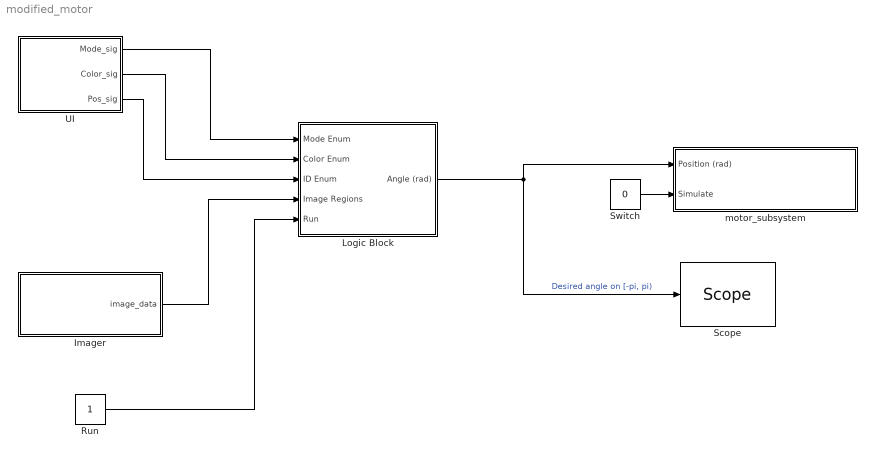
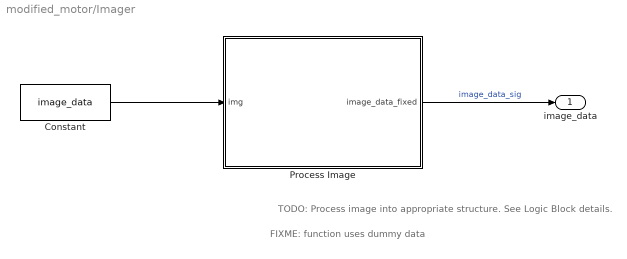
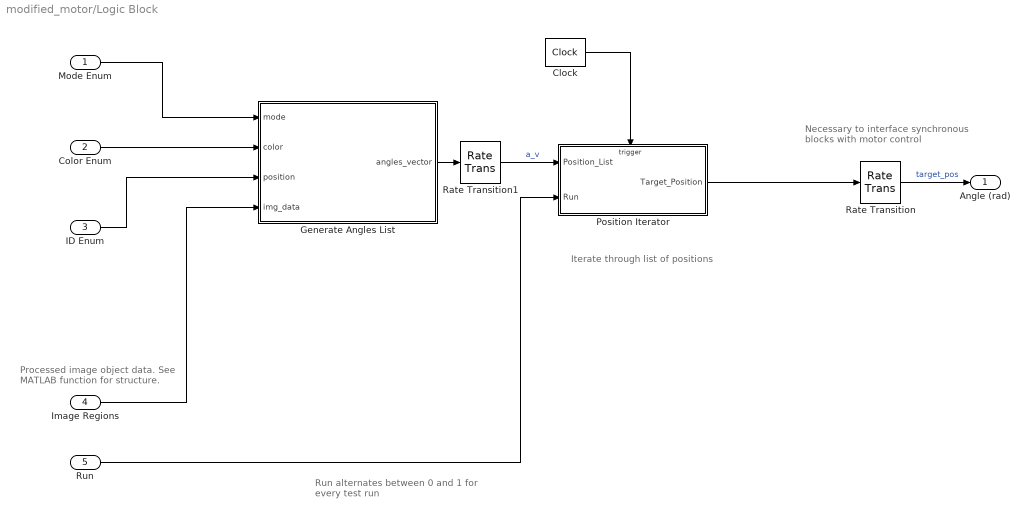
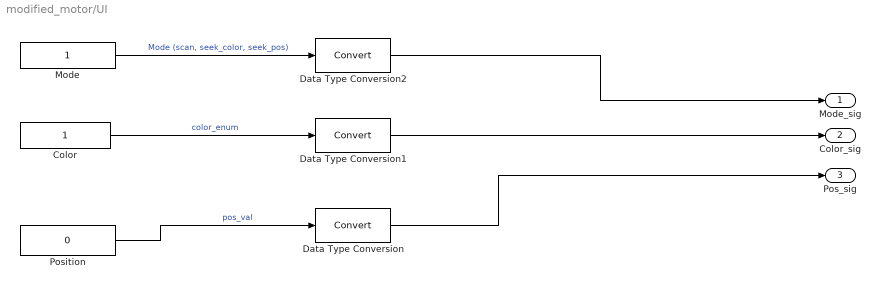
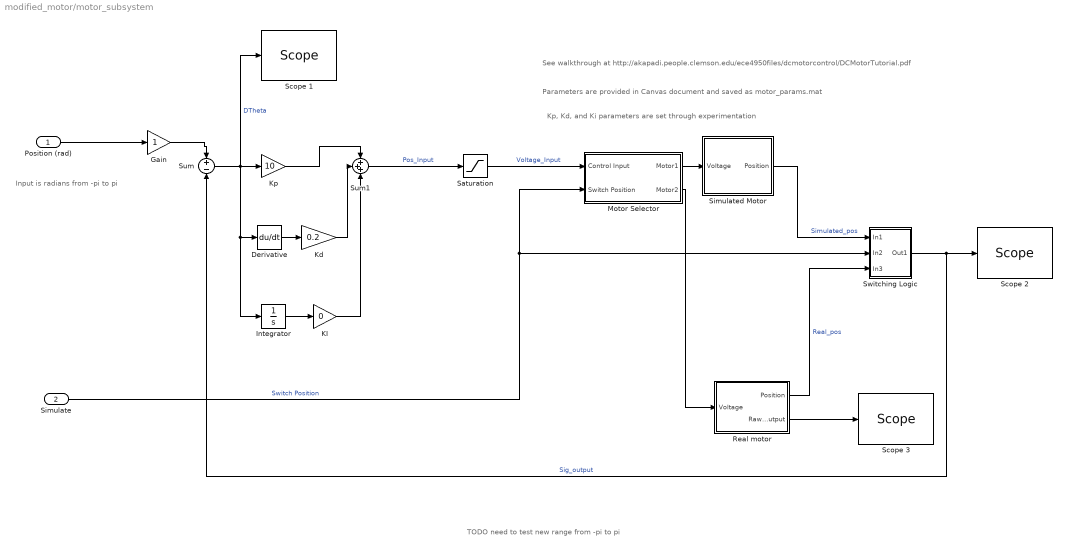
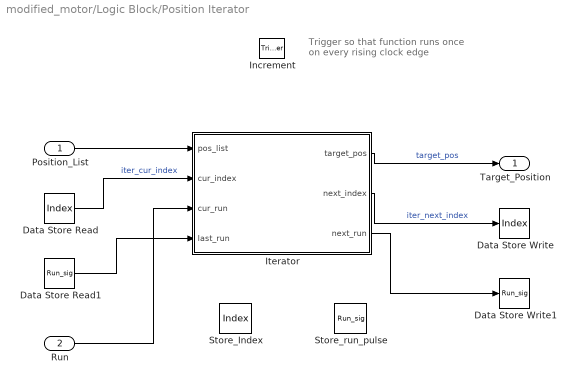
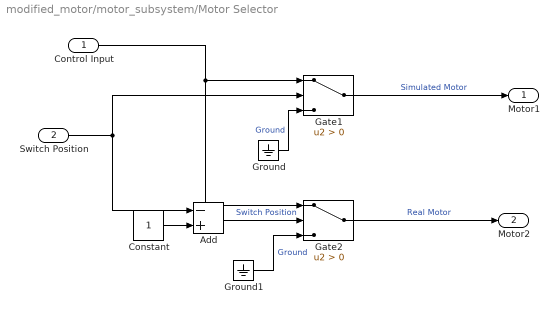
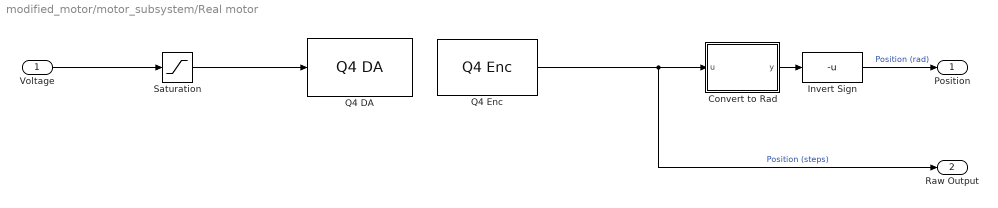
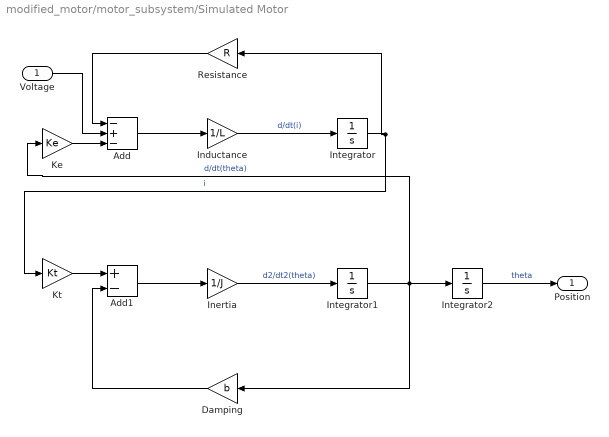
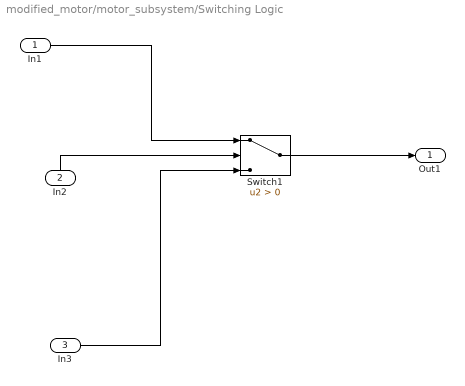
== matlab function modified_motor/Logic Block/Generate Angles List ==
% PURPOSE - Parser to set 
% INPUTS
%   - Mode: What should the system do in response to the user selection
%       - scan: Visit every well with a sticker
%       - seek color: Visit every well with a sticker of the given color
%       - seek position: Visit only the well with the given sticker ID
%   - Color Enum: What color the system should visit
%   - Position: Angle in radians to visit
%   - Image Data: 2D processed data from webcam
%       - Col 1: Color
%       - Col 2: X Position
%       - Col 3: Y Position
% OUTPUTS
%   - positions_to_visit: Vector of fixed destination positions on [-pi, pi) 
%       to which the motor arm should point in sequence.
% NOTES
%   - If mode = 1 then the function ignores requested position and color.
%   - If mode = 2 then the function ignores requested position.
%   - If mode = 3 then the function ignores requested color.


function angles_vector = make_angle_vector(mode, color, position, img_data)

% MATLAB expects a fixed-size output matrix so allow up to 100 angles
% to be propagated
MAX_ANGLES_TO_VISIT = 100;

MODE_SCAN = 1;
MODE_SEEK_COLOR = 2;
MODE_SEEK_POSITION = 3;

COLOR_COL = 1;
X_COL = 2;
Y_COL = 3;

angles_vector = zeros(MAX_ANGLES_TO_VISIT, 1);

if mode == MODE_SCAN
    rect_coords = img_data(img_data(:,1) ~= 0, X_COL:Y_COL);
    angles_to_visit = rect_to_polar_v2(rect_coords);

elseif mode == MODE_SEEK_COLOR
    rect_coords = img_data(img_data(:, COLOR_COL) == color, X_COL:Y_COL);
    angles_to_visit = rect_to_polar_v2(rect_coords);

elseif mode == MODE_SEEK_POSITION
    angles_to_visit = position;

else
    angles_to_visit = [pi; -pi; pi/2; -pi/2];
end

% Package variable-length vector into fixed-length vector
angles_vector(1:size(angles_to_visit,1), :) = angles_to_visit;

== matlab function modified_motor/motor_subsystem/Real motor/Convert to Rad ==
function y = fcn(u)

% Observed experimentally
STEPS_IN_ONE_ROTATION = 400;

rads_from_zero_to_twopi = u * 2 * pi / STEPS_IN_ONE_ROTATION;

y = rads_from_zero_to_twopi;

== matlab function modified_motor/Imager/Process Image ==
function image_data_fixed = process_image(img)

% Can only send fixed-length matrices so specify max 100 regions
REGIONS_SIGNAL_CAPACITY = 100;

% FIXME do processing
image_data_fixed = zeros(REGIONS_SIGNAL_CAPACITY, 3);

% ex. pass back [shape; color; x_pos; y_pos]
image_data_fixed(1:size(img,1),:) = img;

== matlab function modified_motor/Logic Block/Position Iterator/Iterator ==
% PURPOSE - Iterate over list of positions to visit
% INPUTS
%   - Position List: Vector of target positions for the motor to turn to
%   - Current Index: Loopback to store variable state
%   - Clock: Trigger to move to the next position
%   - Reset: Trigger to reset to first position in list (0 == HIGH)
% OUTPUTS
%   - Target Position: Motor position on range [-pi, pi) 
%   - Next Index: Loopback to store variable state
% BEHAVIOR
%   - If Reset is high then reset index to 0 and output first position
%   - Else if Clock is low then output the position at the current index
%   - Else if the index is at the end of the list then output 0
%   - Else increment the index and output the next position

function [target_pos, next_index, next_run] = iterate(pos_list, cur_index, cur_run, last_run)

% PRECONDITION: pos_list is a column vector
assert(size(pos_list, 2) == 1)

ZERO_POSITION = 0;
pos_list_len = size(pos_list, 1);

% This is a very hack-y edge trigger
if cur_run ~= last_run
   next_index = 1;
   target_pos = pos_list(1);
else
   % If we can increment then do that
    if -1 < cur_index && cur_index < pos_list_len
        next_index = cur_index + 1;
        target_pos = pos_list(cur_index + 1);
    % Otherwise maintain current state
    else
        next_index = cur_index;
        target_pos = ZERO_POSITION;
    end
end

next_run = cur_run;

/*
 * modified_motor.c
 *
 * Academic License - for use in teaching, academic research, and meeting
 * course requirements at degree granting institutions only.  Not for
 * government, commercial, or other organizational use.
 *
 * Code generation for model "modified_motor".
 *
 * Model version              : 1.228
 * Simulink Coder version : 8.12 (R2017a) 16-Feb-2017
 * C source code generated on : Thu Mar 12 20:54:42 2020
 *
 * Target selection: slrt.tlc
 * Note: GRT includes extra infrastructure and instrumentation for prototyping
 * Embedded hardware selection: Generic->32-bit x86 compatible
 * Code generation objectives: Unspecified
 * Validation result: Not run
 */

#include "rt_logging_mmi.h"
#include "modified_motor_capi.h"
#include "modified_motor.h"
#include "modified_motor_private.h"

/* Block signals (auto storage) */
B_modified_motor_T modified_motor_B;

/* Continuous states */
X_modified_motor_T modified_motor_X;

/* Block states (auto storage) */
DW_modified_motor_T modified_motor_DW;

/* Previous zero-crossings (trigger) states */
PrevZCX_modified_motor_T modified_motor_PrevZCX;

/* Real-time model */
RT_MODEL_modified_motor_T modified_motor_M_;
RT_MODEL_modified_motor_T *const modified_motor_M = &modified_motor_M_;

/* Forward declaration for local functions */
static void modified_motor_merge(int32_T idx_data[], real_T x_data[], int32_T
  offset, int32_T np, int32_T nq, int32_T iwork_data[], real_T xwork_data[]);
static void modified_motor_merge_block(int32_T idx_data[], real_T x_data[],
  int32_T n, int32_T iwork_data[], real_T xwork_data[]);
static void modified_motor_sortIdx(real_T x_data[], int32_T *x_size, int32_T
  idx_data[], int32_T *idx_size);
static void modified_motor_sort(real_T x_data[], int32_T *x_size);
static void modified_motor_rect_to_polar_v2(const real_T center_coords_data[],
  const int32_T center_coords_size[2], real_T Angles_sorted_data[], int32_T
  *Angles_sorted_size);
static void rate_monotonic_scheduler(void);
time_T rt_SimUpdateDiscreteEvents(
  int_T rtmNumSampTimes, void *rtmTimingData, int_T *rtmSampleHitPtr, int_T
  *rtmPerTaskSampleHits )
{
  rtmSampleHitPtr[1] = rtmStepTask(modified_motor_M, 1);
  rtmSampleHitPtr[2] = rtmStepTask(modified_motor_M, 2);
  UNUSED_PARAMETER(rtmNumSampTimes);
  UNUSED_PARAMETER(rtmTimingData);
  UNUSED_PARAMETER(rtmPerTaskSampleHits);
  return(-1);
}

/*
 *   This function updates active task flag for each subrate
 * and rate transition flags for tasks that exchange data.
 * The function assumes rate-monotonic multitasking scheduler.
 * The function must be called at model base rate so that
 * the generated code self-manages all its subrates and rate
 * transition flags.
 */
static void rate_monotonic_scheduler(void)
{
  /* To ensure a deterministic data transfer between two rates,
   * data is transferred at the priority of a fast task and the frequency
   * of the slow task.  The following flags indicate when the data transfer
   * happens.  That is, a rate interaction flag is set true when both rates
   * will run, and false otherwise.
   */

  /* tid 1 shares data with slower tid rate: 2 */
  if (modified_motor_M->Timing.TaskCounters.TID[1] == 0) {
    modified_motor_M->Timing.RateInteraction.TID1_2 =
      (modified_motor_M->Timing.TaskCounters.TID[2] == 0);

    /* update PerTaskSampleHits matrix for non-inline sfcn */
    modified_motor_M->Timing.perTaskSampleHits[5] =
      modified_motor_M->Timing.RateInteraction.TID1_2;
  }

  /* Compute which subrates run during the next base time step.  Subrates
   * are an integer multiple of the base rate counter.  Therefore, the subtask
   * counter is reset when it reaches its limit (zero means run).
   */
  (modified_motor_M->Timing.TaskCounters.TID[2])++;
  if ((modified_motor_M->Timing.TaskCounters.TID[2]) > 999) {/* Sample time: [1.0s, 0.0s] */
    modified_motor_M->Timing.TaskCounters.TID[2] = 0;
  }
}

/*
 * This function updates continuous states using the ODE3 fixed-step
 * solver algorithm
 */
static void rt_ertODEUpdateContinuousStates(RTWSolverInfo *si )
{
  /* Solver Matrices */
  static const real_T rt_ODE3_A[3] = {
    1.0/2.0, 3.0/4.0, 1.0
  };

  static const real_T rt_ODE3_B[3][3] = {
    { 1.0/2.0, 0.0, 0.0 },

    { 0.0, 3.0/4.0, 0.0 },

    { 2.0/9.0, 1.0/3.0, 4.0/9.0 }
  };

  time_T t = rtsiGetT(si);
  time_T tnew = rtsiGetSolverStopTime(si);
  time_T h = rtsiGetStepSize(si);
  real_T *x = rtsiGetContStates(si);
  ODE3_IntgData *id = (ODE3_IntgData *)rtsiGetSolverData(si);
  real_T *y = id->y;
  real_T *f0 = id->f[0];
  real_T *f1 = id->f[1];
  real_T *f2 = id->f[2];
  real_T hB[3];
  int_T i;
  int_T nXc = 4;
  rtsiSetSimTimeStep(si,MINOR_TIME_STEP);

  /* Save the state values at time t in y, we'll use x as ynew. */
  (void) memcpy(y, x,
                (uint_T)nXc*sizeof(real_T));

  /* Assumes that rtsiSetT and ModelOutputs are up-to-date */
  /* f0 = f(t,y) */
  rtsiSetdX(si, f0);
  modified_motor_derivatives();

  /* f(:,2) = feval(odefile, t + hA(1), y + f*hB(:,1), args(:)(*)); */
  hB[0] = h * rt_ODE3_B[0][0];
  for (i = 0; i < nXc; i++) {
    x[i] = y[i] + (f0[i]*hB[0]);
  }

  rtsiSetT(si, t + h*rt_ODE3_A[0]);
  rtsiSetdX(si, f1);
  modified_motor_output0();
  modified_motor_derivatives();

  /* f(:,3) = feval(odefile, t + hA(2), y + f*hB(:,2), args(:)(*)); */
  for (i = 0; i <= 1; i++) {
    hB[i] = h * rt_ODE3_B[1][i];
  }

  for (i = 0; i < nXc; i++) {
    x[i] = y[i] + (f0[i]*hB[0] + f1[i]*hB[1]);
  }

  rtsiSetT(si, t + h*rt_ODE3_A[1]);
  rtsiSetdX(si, f2);
  modified_motor_output0();
  modified_motor_derivatives();

  /* tnew = t + hA(3);
     ynew = y + f*hB(:,3); */
  for (i = 0; i <= 2; i++) {
    hB[i] = h * rt_ODE3_B[2][i];
  }

  for (i = 0; i < nXc; i++) {
    x[i] = y[i] + (f0[i]*hB[0] + f1[i]*hB[1] + f2[i]*hB[2]);
  }

  rtsiSetT(si, tnew);
  rtsiSetSimTimeStep(si,MAJOR_TIME_STEP);
}

/* Function for MATLAB Function: '<S2>/Generate Angles List' */
static void modified_motor_merge(int32_T idx_data[], real_T x_data[], int32_T
  offset, int32_T np, int32_T nq, int32_T iwork_data[], real_T xwork_data[])
{
  int32_T n;
  int32_T q;
  int32_T qend;
  int32_T iout;
  int32_T exitg1;
  if (nq != 0) {
    n = np + nq;
    for (q = 0; q + 1 <= n; q++) {
      iwork_data[q] = idx_data[offset + q];
      xwork_data[q] = x_data[offset + q];
    }

    n = 0;
    q = np;
    qend = np + nq;
    iout = offset - 1;
    do {
      exitg1 = 0;
      iout++;
      if (xwork_data[n] <= xwork_data[q]) {
        idx_data[iout] = iwork_data[n];
        x_data[iout] = xwork_data[n];
        if (n + 1 < np) {
          n++;
        } else {
          exitg1 = 1;
        }
      } else {
        idx_data[iout] = iwork_data[q];
        x_data[iout] = xwork_data[q];
        if (q + 1 < qend) {
          q++;
        } else {
          q = (iout - n) + 1;
          while (n + 1 <= np) {
            idx_data[q + n] = iwork_data[n];
            x_data[q + n] = xwork_data[n];
            n++;
          }

          exitg1 = 1;
        }
      }
    } while (exitg1 == 0);
  }
}

/* Function for MATLAB Function: '<S2>/Generate Angles List' */
static void modified_motor_merge_block(int32_T idx_data[], real_T x_data[],
  int32_T n, int32_T iwork_data[], real_T xwork_data[])
{
  int32_T bLen;
  int32_T tailOffset;
  int32_T nTail;
  int32_T nPairs;
  nPairs = n >> 2;
  bLen = 4;
  while (nPairs > 1) {
    if ((nPairs & 1) != 0) {
      nPairs--;
      tailOffset = bLen * nPairs;
      nTail = n - tailOffset;
      if (nTail > bLen) {
        modified_motor_merge(idx_data, x_data, tailOffset, bLen, nTail - bLen,
                             iwork_data, xwork_data);
      }
    }

    tailOffset = bLen << 1;
    nPairs >>= 1;
    for (nTail = 1; nTail <= nPairs; nTail++) {
      modified_motor_merge(idx_data, x_data, (nTail - 1) * tailOffset, bLen,
                           bLen, iwork_data, xwork_data);
    }

    bLen = tailOffset;
  }

  if (n > bLen) {
    modified_motor_merge(idx_data, x_data, 0, bLen, n - bLen, iwork_data,
                         xwork_data);
  }
}

/* Function for MATLAB Function: '<S2>/Generate Angles List' */
static void modified_motor_sortIdx(real_T x_data[], int32_T *x_size, int32_T
  idx_data[], int32_T *idx_size)
{
  real_T b_x_data[100];
  int32_T nNaNs;
  int32_T iwork_data[100];
  real_T xwork_data[100];
  int32_T n;
  real_T x4[4];
  int8_T idx4[4];
  int32_T ib;
  int32_T wOffset;
  int32_T itmp;
  int8_T perm[4];
  int32_T i1;
  int32_T i3;
  int32_T i4;
  int32_T b_x_size;
  int32_T iwork_size;
  int32_T xwork_size;
  int8_T b_idx_0;
  b_idx_0 = (int8_T)*x_size;
  b_x_size = *x_size;
  n = *x_size;
  for (nNaNs = 0; nNaNs < n; nNaNs++) {
    b_x_data[nNaNs] = x_data[nNaNs];
  }

  *idx_size = b_idx_0;
  n = b_idx_0;
  for (nNaNs = 0; nNaNs < n; nNaNs++) {
    idx_data[nNaNs] = 0;
  }

  n = *x_size;
  x4[0] = 0.0;
  idx4[0] = 0;
  x4[1] = 0.0;
  idx4[1] = 0;
  x4[2] = 0.0;
  idx4[2] = 0;
  x4[3] = 0.0;
  idx4[3] = 0;
  iwork_size = b_idx_0;
  ib = iwork_size;
  for (nNaNs = 0; nNaNs < ib; nNaNs++) {
    iwork_data[nNaNs] = 0;
  }

  b_idx_0 = (int8_T)*x_size;
  xwork_size = b_idx_0;
  ib = xwork_size;
  for (nNaNs = 0; nNaNs < ib; nNaNs++) {
    xwork_data[nNaNs] = 0.0;
  }

  nNaNs = 1;
  ib = 0;
  for (wOffset = 0; wOffset + 1 <= n; wOffset++) {
    if (rtIsNaN(b_x_data[wOffset])) {
      idx_data[n - nNaNs] = wOffset + 1;
      xwork_data[n - nNaNs] = b_x_data[wOffset];
      nNaNs++;
    } else {
      ib++;
      idx4[ib - 1] = (int8_T)(wOffset + 1);
      x4[ib - 1] = b_x_data[wOffset];
      if (ib == 4) {
        ib = wOffset - nNaNs;
        if (x4[0] <= x4[1]) {
          i1 = 1;
          itmp = 2;
        } else {
          i1 = 2;
          itmp = 1;
        }

        if (x4[2] <= x4[3]) {
          i3 = 3;
          i4 = 4;
        } else {
          i3 = 4;
          i4 = 3;
        }

        if (x4[i1 - 1] <= x4[i3 - 1]) {
          if (x4[itmp - 1] <= x4[i3 - 1]) {
            perm[0] = (int8_T)i1;
            perm[1] = (int8_T)itmp;
            perm[2] = (int8_T)i3;
            perm[3] = (int8_T)i4;
          } else if (x4[itmp - 1] <= x4[i4 - 1]) {
            perm[0] = (int8_T)i1;
            perm[1] = (int8_T)i3;
            perm[2] = (int8_T)itmp;
            perm[3] = (int8_T)i4;
          } else {
            perm[0] = (int8_T)i1;
            perm[1] = (int8_T)i3;
            perm[2] = (int8_T)i4;
            perm[3] = (int8_T)itmp;
          }
        } else if (x4[i1 - 1] <= x4[i4 - 1]) {
          if (x4[itmp - 1] <= x4[i4 - 1]) {
            perm[0] = (int8_T)i3;
            perm[1] = (int8_T)i1;
            perm[2] = (int8_T)itmp;
            perm[3] = (int8_T)i4;
          } else {
            perm[0] = (int8_T)i3;
            perm[1] = (int8_T)i1;
            perm[2] = (int8_T)i4;
            perm[3] = (int8_T)itmp;
          }
        } else {
          perm[0] = (int8_T)i3;
          perm[1] = (int8_T)i4;
          perm[2] = (int8_T)i1;
          perm[3] = (int8_T)itmp;
        }

        idx_data[ib - 2] = idx4[perm[0] - 1];
        idx_data[ib - 1] = idx4[perm[1] - 1];
        idx_data[ib] = idx4[perm[2] - 1];
        idx_data[ib + 1] = idx4[perm[3] - 1];
        b_x_data[ib - 2] = x4[perm[0] - 1];
        b_x_data[ib - 1] = x4[perm[1] - 1];
        b_x_data[ib] = x4[perm[2] - 1];
        b_x_data[ib + 1] = x4[perm[3] - 1];
        ib = 0;
      }
    }
  }

  wOffset = *x_size - nNaNs;
  if (ib > 0) {
    perm[1] = 0;
    perm[2] = 0;
    perm[3] = 0;
    if (ib == 1) {
      perm[0] = 1;
    } else if (ib == 2) {
      if (x4[0] <= x4[1]) {
        perm[0] = 1;
        perm[1] = 2;
      } else {
        perm[0] = 2;
        perm[1] = 1;
      }
    } else if (x4[0] <= x4[1]) {
      if (x4[1] <= x4[2]) {
        perm[0] = 1;
        perm[1] = 2;
        perm[2] = 3;
      } else if (x4[0] <= x4[2]) {
        perm[0] = 1;
        perm[1] = 3;
        perm[2] = 2;
      } else {
        perm[0] = 3;
        perm[1] = 1;
        perm[2] = 2;
      }
    } else if (x4[0] <= x4[2]) {
      perm[0] = 2;
      perm[1] = 1;
      perm[2] = 3;
    } else if (x4[1] <= x4[2]) {
      perm[0] = 2;
      perm[1] = 3;
      perm[2] = 1;
    } else {
      perm[0] = 3;
      perm[1] = 2;
      perm[2] = 1;
    }

    for (i1 = 1; i1 <= ib; i1++) {
      idx_data[(wOffset - ib) + i1] = idx4[perm[i1 - 1] - 1];
      b_x_data[(wOffset - ib) + i1] = x4[perm[i1 - 1] - 1];
    }
  }

  ib = ((nNaNs - 1) >> 1) + 1;
  for (i1 = 1; i1 < ib; i1++) {
    itmp = idx_data[wOffset + i1];
    idx_data[wOffset + i1] = idx_data[n - i1];
    idx_data[n - i1] = itmp;
    b_x_data[wOffset + i1] = xwork_data[n - i1];
    b_x_data[n - i1] = xwork_data[wOffset + i1];
  }

  if (((nNaNs - 1) & 1) != 0) {
    b_x_data[wOffset + ib] = xwork_data[wOffset + ib];
  }

  n = (*x_size - nNaNs) + 1;
  if (n > 1) {
    modified_motor_merge_block(idx_data, b_x_data, n, iwork_data, xwork_data);
  }

  *x_size = b_x_size;
  n = b_x_size;
  for (nNaNs = 0; nNaNs < n; nNaNs++) {
    x_data[nNaNs] = b_x_data[nNaNs];
  }
}

/* Function for MATLAB Function: '<S2>/Generate Angles List' */
static void modified_motor_sort(real_T x_data[], int32_T *x_size)
{
  real_T vwork_data[100];
  int32_T vstride;
  int32_T dim;
  int32_T b;
  int32_T c_k;
  int32_T vwork_size;
  emxArray_int32_T_100_modified_T vwork_data_0;
  dim = 2;
  if (*x_size != 1) {
    dim = 1;
  }

  if (dim <= 1) {
    b = *x_size;
  } else {
    b = 1;
  }

  vwork_size = (int8_T)b;
  vstride = 1;
  c_k = 1;
  while (c_k <= dim - 1) {
    vstride *= *x_size;
    c_k = 2;
  }

  for (dim = 0; dim + 1 <= vstride; dim++) {
    for (c_k = 0; c_k + 1 <= b; c_k++) {
      vwork_data[c_k] = x_data[c_k * vstride + dim];
    }

    modified_motor_sortIdx(vwork_data, &vwork_size, vwork_data_0.data,
      &vwork_data_0.size);
    for (c_k = 0; c_k + 1 <= b; c_k++) {
      x_data[dim + c_k * vstride] = vwork_data[c_k];
    }
  }
}

/* Function for MATLAB Function: '<S2>/Generate Angles List' */
static void modified_motor_rect_to_polar_v2(const real_T center_coords_data[],
  const int32_T center_coords_size[2], real_T Angles_sorted_data[], int32_T
  *Angles_sorted_size)
{
  int32_T i;
  int32_T u0;

  /*  PURPOSE - Convert rectangular object coordinates to angle for */
  /*            motor position */
  /*  INPUTS */
  /*    - X, Y coordinates == center coords of each object */
  /*  OUTPUTS */
  /*    - Vector of angles (radians) ordered ascending */
  /*  NOTES */
  /*    - Theta == 0 is at the east of the map */
  /*    - Positive angles are in south plane */
  /*    - Negative angles are in north plane */
  /*    - Camera origin (0,0) is at NW corner */
  /*    - Game board origin is at image center */
  /*  TODO: confirm actual frame dimensions */
  /*  Get the game board center (Approx. Motor Location)  */
  /*  so we can calculate relative angles */
  if (center_coords_size[0] == 0) {
    u0 = 0;
  } else {
    u0 = center_coords_size[0];
    if (!(u0 > 2)) {
      u0 = 2;
    }
  }

  *Angles_sorted_size = u0;
  for (i = 0; i < u0; i++) {
    Angles_sorted_data[i] = atan((center_coords_data[i + center_coords_size[0]]
      - 240.0) / (center_coords_data[i] - 320.0));

    /*  Quandrant dependent angle math */
    /*  Q4 */
    if ((center_coords_data[i] - 320.0 > 0.0) && (center_coords_data[i +
         center_coords_size[0]] - 240.0 < 0.0)) {
      /*  Q3 */
    } else if ((center_coords_data[i] - 320.0 < 0.0) && (center_coords_data[i +
                center_coords_size[0]] - 240.0 < 0.0)) {
      Angles_sorted_data[i] -= 3.1415926535897931;

      /*  Q2 */
    } else if ((center_coords_data[i] - 320.0 < 0.0) && (center_coords_data[i +
                center_coords_size[0]] - 240.0 > 0.0)) {
      Angles_sorted_data[i] += 3.1415926535897931;
    } else if ((center_coords_data[i] - 320.0 > 0.0) && (center_coords_data[i +
                center_coords_size[0]] - 240.0 > 0.0)) {
      /*  may need to fix this, this is 4th quadrant */
      /*  Special case: angle is at -pi */
    } else if ((center_coords_data[i + center_coords_size[0]] - 240.0 == 0.0) &&
               (center_coords_data[i] - 320.0 < 0.0)) {
      Angles_sorted_data[i] = -3.1415926535897931;
    } else {
      if ((center_coords_data[i] - 320.0 == 0.0) && (center_coords_data[i +
           center_coords_size[0]] - 240.0 == 0.0)) {
        Angles_sorted_data[i] = 0.0;
      }
    }

    Angles_sorted_data[i] = -Angles_sorted_data[i];
  }

  modified_motor_sort(Angles_sorted_data, Angles_sorted_size);
}

/* Model output function for TID0 */
void modified_motor_output0(void)      /* Sample time: [0.0s, 0.0s] */
{
  real_T *lastU;
  real_T lastTime;
  real_T angles_to_visit_data[100];
  boolean_T c[100];
  int8_T d_data[100];
  int32_T b_trueCount;
  real_T tmp_data[200];
  int32_T c_i;
  int32_T angles_to_visit_size;
  int32_T tmp_size[2];
  boolean_T c_0;
  int32_T d_size_idx_0;
  real_T u1;
  real_T u2;
  if (rtmIsMajorTimeStep(modified_motor_M)) {
    /* set solver stop time */
    if (!(modified_motor_M->Timing.clockTick0+1)) {
      rtsiSetSolverStopTime(&modified_motor_M->solverInfo,
                            ((modified_motor_M->Timing.clockTickH0 + 1) *
        modified_motor_M->Timing.stepSize0 * 4294967296.0));
    } else {
      rtsiSetSolverStopTime(&modified_motor_M->solverInfo,
                            ((modified_motor_M->Timing.clockTick0 + 1) *
        modified_motor_M->Timing.stepSize0 +
        modified_motor_M->Timing.clockTickH0 *
        modified_motor_M->Timing.stepSize0 * 4294967296.0));
    }

    {                                  /* Sample time: [0.0s, 0.0s] */
      rate_monotonic_scheduler();
    }
  }                                    /* end MajorTimeStep */

  /* Update absolute time of base rate at minor time step */
  if (rtmIsMinorTimeStep(modified_motor_M)) {
    modified_motor_M->Timing.t[0] = rtsiGetT(&modified_motor_M->solverInfo);
  }

  /* RateTransition: '<S2>/Rate Transition' incorporates:
   *  Constant: '<Root>/Run'
   */
  if (rtmIsMajorTimeStep(modified_motor_M)) {
    if (modified_motor_M->Timing.RateInteraction.TID1_2) {
      modified_motor_B.target_pos = modified_motor_DW.RateTransition_Buffer0;
    }

    modified_motor_B.Run = modified_motor_P.Run_Value;

    /* S-Function (scblock): '<S3>/S-Function' */
    /* ok to acquire for <S3>/S-Function */
    modified_motor_DW.SFunction_IWORK.AcquireOK = 1;

    /* Gain: '<S5>/Gain' */
    modified_motor_B.Gain = modified_motor_P.Gain_Gain *
      modified_motor_B.target_pos;
  }

  /* End of RateTransition: '<S2>/Rate Transition' */

  /* Integrator: '<S16>/Integrator2' */
  modified_motor_B.theta = modified_motor_X.Integrator2_CSTATE;
  if (rtmIsMajorTimeStep(modified_motor_M)) {
    /* S-Function (encquanserq8): '<S12>/Q4 Enc ' */

    /* Level2 S-Function Block: '<S12>/Q4 Enc ' (encquanserq8) */
    {
      SimStruct *rts = modified_motor_M->childSfunctions[0];
      sfcnOutputs(rts,0);
    }

    /* MATLAB Function: '<S12>/Convert to Rad' */
    /* MATLAB Function 'motor_subsystem/Real motor/Convert to Rad': '<S18>:1' */
    /*  Observed experimentally */
    /* '<S18>:1:6' */
    /* '<S18>:1:8' */
    modified_motor_B.y = modified_motor_B.Positionsteps * 2.0 *
      3.1415926535897931 / 400.0;

    /* Fcn: '<S12>/Invert Sign' */
    modified_motor_B.Positionrad = -modified_motor_B.y;
  }

  /* Switch: '<S17>/Switch1' incorporates:
   *  Constant: '<Root>/Switch'
   */
  if (modified_motor_P.Switch_Value > modified_motor_P.Switch1_Threshold) {
    modified_motor_B.Switch1 = modified_motor_B.theta;
  } else {
    modified_motor_B.Switch1 = modified_motor_B.Positionrad;
  }

  /* End of Switch: '<S17>/Switch1' */

  /* Sum: '<S5>/Sum' */
  modified_motor_B.DTheta = modified_motor_B.Gain - modified_motor_B.Switch1;

  /* Gain: '<S5>/Kp' */
  modified_motor_B.Kp = modified_motor_P.Kp_Gain * modified_motor_B.DTheta;

  /* Derivative: '<S5>/Derivative' */
  if ((modified_motor_DW.TimeStampA >= modified_motor_M->Timing.t[0]) &&
      (modified_motor_DW.TimeStampB >= modified_motor_M->Timing.t[0])) {
    modified_motor_B.Derivative = 0.0;
  } else {
    lastTime = modified_motor_DW.TimeStampA;
    lastU = &modified_motor_DW.LastUAtTimeA;
    if (modified_motor_DW.TimeStampA < modified_motor_DW.TimeStampB) {
      if (modified_motor_DW.TimeStampB < modified_motor_M->Timing.t[0]) {
        lastTime = modified_motor_DW.TimeStampB;
        lastU = &modified_motor_DW.LastUAtTimeB;
      }
    } else {
      if (modified_motor_DW.TimeStampA >= modified_motor_M->Timing.t[0]) {
        lastTime = modified_motor_DW.TimeStampB;
        lastU = &modified_motor_DW.LastUAtTimeB;
      }
    }

    lastTime = modified_motor_M->Timing.t[0] - lastTime;
    modified_motor_B.Derivative = (modified_motor_B.DTheta - *lastU) / lastTime;
  }

  /* End of Derivative: '<S5>/Derivative' */

  /* Gain: '<S5>/Kd' */
  modified_motor_B.Kd = modified_motor_P.Kd_Gain * modified_motor_B.Derivative;

  /* Integrator: '<S5>/Integrator' */
  modified_motor_B.Integrator = modified_motor_X.Integrator_CSTATE;

  /* Gain: '<S5>/KI' */
  modified_motor_B.KI = modified_motor_P.KI_Gain * modified_motor_B.Integrator;

  /* Sum: '<S5>/Sum1' */
  modified_motor_B.Pos_Input = (modified_motor_B.Kp + modified_motor_B.Kd) +
    modified_motor_B.KI;

  /* Saturate: '<S5>/Saturation' */
  lastTime = modified_motor_B.Pos_Input;
  u1 = modified_motor_P.Saturation_LowerSat;
  u2 = modified_motor_P.Saturation_UpperSat;
  if (lastTime > u2) {
    modified_motor_B.Voltage_Input = u2;
  } else if (lastTime < u1) {
    modified_motor_B.Voltage_Input = u1;
  } else {
    modified_motor_B.Voltage_Input = lastTime;
  }

  /* End of Saturate: '<S5>/Saturation' */
  if (rtmIsMajorTimeStep(modified_motor_M)) {
  }

  /* S-Function (scblock): '<S13>/S-Function' */
  /* ok to acquire for <S13>/S-Function */
  modified_motor_DW.SFunction_IWORK_g.AcquireOK = 1;

  /* S-Function (scblock): '<S14>/S-Function' */
  /* ok to acquire for <S14>/S-Function */
  modified_motor_DW.SFunction_IWORK_n.AcquireOK = 1;
  if (rtmIsMajorTimeStep(modified_motor_M)) {
    /* S-Function (scblock): '<S15>/S-Function' */
    /* ok to acquire for <S15>/S-Function */
    modified_motor_DW.SFunction_IWORK_m.AcquireOK = 1;

    /* Sum: '<S11>/Add' incorporates:
     *  Constant: '<Root>/Switch'
     *  Constant: '<S11>/Constant'
     */
    modified_motor_B.SwitchPosition = modified_motor_P.Constant_Value -
      modified_motor_P.Switch_Value;
  }

  /* Switch: '<S11>/Gate1' incorporates:
   *  Constant: '<Root>/Switch'
   */
  if (modified_motor_P.Switch_Value > modified_motor_P.Gate1_Threshold) {
    modified_motor_B.SimulatedMotor = modified_motor_B.Voltage_Input;
  } else {
    modified_motor_B.SimulatedMotor = 0.0;
  }

  /* End of Switch: '<S11>/Gate1' */

  /* Switch: '<S11>/Gate2' */
  if (modified_motor_B.SwitchPosition > modified_motor_P.Gate2_Threshold) {
    modified_motor_B.RealMotor = modified_motor_B.Voltage_Input;
  } else {
    modified_motor_B.RealMotor = 0.0;
  }

  /* End of Switch: '<S11>/Gate2' */

  /* Saturate: '<S12>/Saturation' */
  lastTime = modified_motor_B.RealMotor;
  u1 = modified_motor_P.Saturation_LowerSat_d;
  u2 = modified_motor_P.Saturation_UpperSat_a;
  if (lastTime > u2) {
    modified_motor_B.Saturation = u2;
  } else if (lastTime < u1) {
    modified_motor_B.Saturation = u1;
  } else {
    modified_motor_B.Saturation = lastTime;
  }

  /* End of Saturate: '<S12>/Saturation' */
  if (rtmIsMajorTimeStep(modified_motor_M)) {
    /* S-Function (daquanserq8): '<S12>/Q4 DA ' */

    /* Level2 S-Function Block: '<S12>/Q4 DA ' (daquanserq8) */
    {
      SimStruct *rts = modified_motor_M->childSfunctions[1];
      sfcnOutputs(rts,0);
    }
  }

  /* Integrator: '<S16>/Integrator' */
  modified_motor_B.i = modified_motor_X.Integrator_CSTATE_g;

  /* Gain: '<S16>/Resistance' */
  modified_motor_B.Resistance = modified_motor_P.R * modified_motor_B.i;

  /* Integrator: '<S16>/Integrator1' */
  modified_motor_B.ddttheta = modified_motor_X.Integrator1_CSTATE;

  /* Gain: '<S16>/Ke' */
  modified_motor_B.Ke = modified_motor_P.Ke * modified_motor_B.ddttheta;

  /* Sum: '<S16>/Add' */
  modified_motor_B.Add = (modified_motor_B.SimulatedMotor -
    modified_motor_B.Resistance) - modified_motor_B.Ke;

  /* Gain: '<S16>/Kt' */
  modified_motor_B.Kt = modified_motor_P.Kt * modified_motor_B.i;

  /* Gain: '<S16>/Damping' */
  modified_motor_B.Damping = modified_motor_P.b * modified_motor_B.ddttheta;

  /* Sum: '<S16>/Add1' */
  modified_motor_B.Add1 = modified_motor_B.Kt - modified_motor_B.Damping;

  /* Gain: '<S16>/Inductance' */
  lastTime = modified_motor_P.L;
  lastTime = 1.0 / lastTime;
  modified_motor_B.ddti = lastTime * modified_motor_B.Add;

  /* Gain: '<S16>/Inertia ' */
  lastTime = modified_motor_P.J;
  lastTime = 1.0 / lastTime;
  modified_motor_B.d2dt2theta = lastTime * modified_motor_B.Add1;
  if (rtmIsMajorTimeStep(modified_motor_M)) {
    /* MATLAB Function: '<S1>/Process Image' incorporates:
     *  Constant: '<S1>/Constant'
     */
    /* MATLAB Function 'Imager/Process Image': '<S6>:1' */
    /*  Can only send fixed-length matrices so specify max 100 regions */
    /*  FIXME do processing */
    /* '<S6>:1:7' */
    /*  ex. pass back [shape; color; x_pos; y_pos] */
    /* '<S6>:1:10' */
    memcpy(&modified_motor_B.image_data_fixed[0], &modified_motor_P.image_data[0],
           300U * sizeof(real_T));

    /* DataTypeConversion: '<S4>/Data Type Conversion2' incorporates:
     *  Constant: '<S4>/Mode'
     */
    modified_motor_B.DataTypeConversion2 = modified_motor_P.Mode_Value;

    /* DataTypeConversion: '<S4>/Data Type Conversion1' incorporates:
     *  Constant: '<S4>/Color'
     */
    modified_motor_B.DataTypeConversion1 = modified_motor_P.Color_Value;

    /* DataTypeConversion: '<S4>/Data Type Conversion' incorporates:
     *  Constant: '<S4>/Position'
     */
    modified_motor_B.DataTypeConversion = modified_motor_P.Position_Value;

    /* MATLAB Function: '<S2>/Generate Angles List' */
    /* MATLAB Function 'Logic Block/Generate Angles List': '<S8>:1' */
    /*  PURPOSE - Parser to set  */
    /*  INPUTS */
    /*    - Mode: What should the system do in response to the user selection */
    /*        - scan: Visit every well with a sticker */
    /*        - seek color: Visit every well with a sticker of the given color */
    /*        - seek position: Visit only the well with the given sticker ID */
    /*    - Color Enum: What color the system should visit */
    /*    - Position: Angle in radians to visit */
    /*    - Image Data: 2D processed data from webcam */
    /*        - Col 1: Color */
    /*        - Col 2: X Position */
    /*        - Col 3: Y Position */
    /*  OUTPUTS */
    /*    - positions_to_visit: Vector of fixed destination positions on [-pi, pi)  */
    /*        to which the motor arm should point in sequence. */
    /*  NOTES */
    /*    - If mode = 1 then the function ignores requested position and color. */
    /*    - If mode = 2 then the function ignores requested position. */
    /*    - If mode = 3 then the function ignores requested color. */
    /*  MATLAB expects a fixed-size output matrix so allow up to 100 angles */
    /*  to be propagated */
    /* '<S8>:1:36' */
    memset(&modified_motor_B.angles_vector[0], 0, 100U * sizeof(real_T));
    if (modified_motor_B.DataTypeConversion2 == 1.0) {
      /* '<S8>:1:38' */
      /* '<S8>:1:39' */
      b_trueCount = 0;
      for (c_i = 0; c_i < 100; c_i++) {
        c_0 = (modified_motor_B.image_data_fixed[c_i] != 0.0);
        if (c_0) {
          b_trueCount++;
        }

        c[c_i] = c_0;
      }

      d_size_idx_0 = b_trueCount;
      b_trueCount = 0;
      for (c_i = 0; c_i < 100; c_i++) {
        if (c[c_i]) {
          d_data[b_trueCount] = (int8_T)(c_i + 1);
          b_trueCount++;
        }
      }

      /* '<S8>:1:40' */
      tmp_size[0] = d_size_idx_0;
      tmp_size[1] = 2;
      for (b_trueCount = 0; b_trueCount < d_size_idx_0; b_trueCount++) {
        tmp_data[b_trueCount] =
          modified_motor_B.image_data_fixed[d_data[b_trueCount] + 99];
      }

      for (b_trueCount = 0; b_trueCount < d_size_idx_0; b_trueCount++) {
        tmp_data[b_trueCount + tmp_size[0]] =
          modified_motor_B.image_data_fixed[d_data[b_trueCount] + 199];
      }

      modified_motor_rect_to_polar_v2(tmp_data, tmp_size, angles_to_visit_data,
        &angles_to_visit_size);
    } else if (modified_motor_B.DataTypeConversion2 == 2.0) {
      /* '<S8>:1:42' */
      /* '<S8>:1:43' */
      b_trueCount = 0;
      for (c_i = 0; c_i < 100; c_i++) {
        c_0 = (modified_motor_B.image_data_fixed[c_i] ==
               modified_motor_B.DataTypeConversion1);
        if (c_0) {
          b_trueCount++;
        }

        c[c_i] = c_0;
      }

      d_size_idx_0 = b_trueCount;
      b_trueCount = 0;
      for (c_i = 0; c_i < 100; c_i++) {
        if (c[c_i]) {
          d_data[b_trueCount] = (int8_T)(c_i + 1);
          b_trueCount++;
        }
      }

      /* '<S8>:1:44' */
      tmp_size[0] = d_size_idx_0;
      tmp_size[1] = 2;
      for (b_trueCount = 0; b_trueCount < d_size_idx_0; b_trueCount++) {
        tmp_data[b_trueCount] =
          modified_motor_B.image_data_fixed[d_data[b_trueCount] + 99];
      }

      for (b_trueCount = 0; b_trueCount < d_size_idx_0; b_trueCount++) {
        tmp_data[b_trueCount + tmp_size[0]] =
          modified_motor_B.image_data_fixed[d_data[b_trueCount] + 199];
      }

      modified_motor_rect_to_polar_v2(tmp_data, tmp_size, angles_to_visit_data,
        &angles_to_visit_size);
    } else if (modified_motor_B.DataTypeConversion2 == 3.0) {
      /* '<S8>:1:46' */
      /* '<S8>:1:47' */
      angles_to_visit_size = 1;
      angles_to_visit_data[0] = modified_motor_B.DataTypeConversion;
    } else {
      /* '<S8>:1:50' */
      angles_to_visit_size = 4;
      angles_to_visit_data[0] = 3.1415926535897931;
      angles_to_visit_data[1] = -3.1415926535897931;
      angles_to_visit_data[2] = 1.5707963267948966;
      angles_to_visit_data[3] = -1.5707963267948966;
    }

    /*  Package variable-length vector into fixed-length vector */
    /* '<S8>:1:54' */
    d_size_idx_0 = angles_to_visit_size;
    for (b_trueCount = 0; b_trueCount < d_size_idx_0; b_trueCount++) {
      modified_motor_B.angles_vector[b_trueCount] =
        angles_to_visit_data[b_trueCount];
    }

    /* End of MATLAB Function: '<S2>/Generate Angles List' */

    /* RateTransition: '<S2>/Rate Transition1' */
    if (modified_motor_M->Timing.RateInteraction.TID1_2) {
      memcpy(&modified_motor_B.a_v[0], &modified_motor_B.angles_vector[0], 100U *
             sizeof(real_T));
    }

    /* End of RateTransition: '<S2>/Rate Transition1' */

    /* RateTransition: '<S2>/TmpRTBAtPosition IteratorInport2' */
    if (!(modified_motor_DW.TmpRTBAtPositionIteratorInpor_a != 0)) {
      modified_motor_DW.TmpRTBAtPositionIteratorInport2 = modified_motor_B.Run;
    }

    /* End of RateTransition: '<S2>/TmpRTBAtPosition IteratorInport2' */
  }
}

/* Model update function for TID0 */
void modified_motor_update0(void)      /* Sample time: [0.0s, 0.0s] */
{
  real_T *lastU;

  /* Update for Derivative: '<S5>/Derivative' */
  if (modified_motor_DW.TimeStampA == (rtInf)) {
    modified_motor_DW.TimeStampA = modified_motor_M->Timing.t[0];
    lastU = &modified_motor_DW.LastUAtTimeA;
  } else if (modified_motor_DW.TimeStampB == (rtInf)) {
    modified_motor_DW.TimeStampB = modified_motor_M->Timing.t[0];
    lastU = &modified_motor_DW.LastUAtTimeB;
  } else if (modified_motor_DW.TimeStampA < modified_motor_DW.TimeStampB) {
    modified_motor_DW.TimeStampA = modified_motor_M->Timing.t[0];
    lastU = &modified_motor_DW.LastUAtTimeA;
  } else {
    modified_motor_DW.TimeStampB = modified_motor_M->Timing.t[0];
    lastU = &modified_motor_DW.LastUAtTimeB;
  }

  *lastU = modified_motor_B.DTheta;

  /* End of Update for Derivative: '<S5>/Derivative' */
  if (rtmIsMajorTimeStep(modified_motor_M)) {
    rt_ertODEUpdateContinuousStates(&modified_motor_M->solverInfo);
  }

  /* Update absolute time */
  /* The "clockTick0" counts the number of times the code of this task has
   * been executed. The absolute time is the multiplication of "clockTick0"
   * and "Timing.stepSize0". Size of "clockTick0" ensures timer will not
   * overflow during the application lifespan selected.
   * Timer of this task consists of two 32 bit unsigned integers.
   * The two integers represent the low bits Timing.clockTick0 and the high bits
   * Timing.clockTickH0. When the low bit overflows to 0, the high bits increment.
   */
  if (!(++modified_motor_M->Timing.clockTick0)) {
    ++modified_motor_M->Timing.clockTickH0;
  }

  modified_motor_M->Timing.t[0] = rtsiGetSolverStopTime
    (&modified_motor_M->solverInfo);

  /* Update absolute time */
  /* The "clockTick1" counts the number of times the code of this task has
   * been executed. The absolute time is the multiplication of "clockTick1"
   * and "Timing.stepSize1". Size of "clockTick1" ensures timer will not
   * overflow during the application lifespan selected.
   * Timer of this task consists of two 32 bit unsigned integers.
   * The two integers represent the low bits Timing.clockTick1 and the high bits
   * Timing.clockTickH1. When the low bit overflows to 0, the high bits increment.
   */
  if (!(++modified_motor_M->Timing.clockTick1)) {
    ++modified_motor_M->Timing.clockTickH1;
  }

  modified_motor_M->Timing.t[1] = modified_motor_M->Timing.clockTick1 *
    modified_motor_M->Timing.stepSize1 + modified_motor_M->Timing.clockTickH1 *
    modified_motor_M->Timing.stepSize1 * 4294967296.0;
}

/* Derivatives for root system: '<Root>' */
void modified_motor_derivatives(void)
{
  XDot_modified_motor_T *_rtXdot;
  _rtXdot = ((XDot_modified_motor_T *) modified_motor_M->derivs);

  /* Derivatives for Integrator: '<S16>/Integrator2' */
  _rtXdot->Integrator2_CSTATE = modified_motor_B.ddttheta;

  /* Derivatives for Integrator: '<S5>/Integrator' */
  _rtXdot->Integrator_CSTATE = modified_motor_B.DTheta;

  /* Derivatives for Integrator: '<S16>/Integrator' */
  _rtXdot->Integrator_CSTATE_g = modified_motor_B.ddti;

  /* Derivatives for Integrator: '<S16>/Integrator1' */
  _rtXdot->Integrator1_CSTATE = modified_motor_B.d2dt2theta;
}

/* Model output function for TID2 */
void modified_motor_output2(void)      /* Sample time: [1.0s, 0.0s] */
{
  ZCEventType zcEvent;

  /* Reset subsysRan breadcrumbs */
  srClearBC(modified_motor_DW.PositionIterator_SubsysRanBC);

  /* RateTransition: '<S2>/TmpRTBAtPosition IteratorInport2' */
  modified_motor_DW.TmpRTBAtPositionIteratorInpor_a = 1;
  modified_motor_B.TmpRTBAtPositionIteratorInport2 =
    modified_motor_DW.TmpRTBAtPositionIteratorInport2;
  modified_motor_DW.TmpRTBAtPositionIteratorInpor_a = 0;

  /* UnitDelay: '<S7>/Unit Delay' */
  modified_motor_B.UnitDelay = modified_motor_DW.UnitDelay_DSTATE;

  /* Sum: '<S7>/Sum' incorporates:
   *  Constant: '<S7>/Constant'
   */
  modified_motor_B.Sum = modified_motor_P.Constant_Value_b -
    modified_motor_B.UnitDelay;

  /* Outputs for Triggered SubSystem: '<S2>/Position Iterator' incorporates:
   *  TriggerPort: '<S9>/Increment'
   */
  if (rtmIsMajorTimeStep(modified_motor_M)) {
    zcEvent = rt_ZCFcn(RISING_ZERO_CROSSING,
                       &modified_motor_PrevZCX.PositionIterator_Trig_ZCE,
                       (modified_motor_B.Sum));
    if (zcEvent != NO_ZCEVENT) {
      /* DataStoreRead: '<S9>/Data Store Read' */
      modified_motor_B.iter_cur_index = modified_motor_DW.Index;

      /* DataStoreRead: '<S9>/Data Store Read1' */
      modified_motor_B.DataStoreRead1 = modified_motor_DW.Run_sig;

      /* MATLAB Function: '<S9>/Iterator' */
      /* MATLAB Function 'Logic Block/Position Iterator/Iterator': '<S10>:1' */
      /*  PURPOSE - Iterate over list of positions to visit */
      /*  INPUTS */
      /*    - Position List: Vector of target positions for the motor to turn to */
      /*    - Current Index: Loopback to store variable state */
      /*    - Clock: Trigger to move to the next position */
      /*    - Reset: Trigger to reset to first position in list (0 == HIGH) */
      /*  OUTPUTS */
      /*    - Target Position: Motor position on range [-pi, pi)  */
      /*    - Next Index: Loopback to store variable state */
      /*  BEHAVIOR */
      /*    - If Reset is high then reset index to 0 and output first position */
      /*    - Else if Clock is low then output the position at the current index */
      /*    - Else if the index is at the end of the list then output 0 */
      /*    - Else increment the index and output the next position */
      /*  PRECONDITION: pos_list is a column vector */
      /* '<S10>:1:21' */
      /* '<S10>:1:22' */
      /*  This is a very hack-y edge trigger */
      if (modified_motor_B.TmpRTBAtPositionIteratorInport2 !=
          modified_motor_B.DataStoreRead1) {
        /* '<S10>:1:25' */
        /* '<S10>:1:26' */
        modified_motor_B.next_index = 1.0;

        /* '<S10>:1:27' */
        modified_motor_B.target_pos_o = modified_motor_B.a_v[0];
      } else {
        /*  If we can increment then do that */
        if ((-1.0 < modified_motor_B.iter_cur_index) &&
            (modified_motor_B.iter_cur_index < 100.0)) {
          /* '<S10>:1:30' */
          /* '<S10>:1:31' */
          modified_motor_B.next_index = modified_motor_B.iter_cur_index + 1.0;

          /* '<S10>:1:32' */
          modified_motor_B.target_pos_o = modified_motor_B.a_v[(int32_T)
            (modified_motor_B.iter_cur_index + 1.0) - 1];

          /*  Otherwise maintain current state */
        } else {
          /* '<S10>:1:35' */
          modified_motor_B.next_index = modified_motor_B.iter_cur_index;

          /* '<S10>:1:36' */
          modified_motor_B.target_pos_o = 0.0;
        }
      }

      /* '<S10>:1:40' */
      modified_motor_B.next_run =
        modified_motor_B.TmpRTBAtPositionIteratorInport2;

      /* End of MATLAB Function: '<S9>/Iterator' */

      /* DataStoreWrite: '<S9>/Data Store Write' */
      modified_motor_DW.Index = modified_motor_B.next_index;

      /* DataStoreWrite: '<S9>/Data Store Write1' */
      modified_motor_DW.Run_sig = modified_motor_B.next_run;
      modified_motor_DW.PositionIterator_SubsysRanBC = 4;
    }
  }

  /* End of Outputs for SubSystem: '<S2>/Position Iterator' */
}

/* Model update function for TID2 */
void modified_motor_update2(void)      /* Sample time: [1.0s, 0.0s] */
{
  /* Update for RateTransition: '<S2>/Rate Transition' */
  modified_motor_DW.RateTransition_Buffer0 = modified_motor_B.target_pos_o;

  /* Update for UnitDelay: '<S7>/Unit Delay' */
  modified_motor_DW.UnitDelay_DSTATE = modified_motor_B.Sum;

  /* Update absolute time */
  /* The "clockTick2" counts the number of times the code of this task has
   * been executed. The absolute time is the multiplication of "clockTick2"
   * and "Timing.stepSize2". Size of "clockTick2" ensures timer will not
   * overflow during the application lifespan selected.
   * Timer of this task consists of two 32 bit unsigned integers.
   * The two integers represent the low bits Timing.clockTick2 and the high bits
   * Timing.clockTickH2. When the low bit overflows to 0, the high bits increment.
   */
  if (!(++modified_motor_M->Timing.clockTick2)) {
    ++modified_motor_M->Timing.clockTickH2;
  }

  modified_motor_M->Timing.t[2] = modified_motor_M->Timing.clockTick2 *
    modified_motor_M->Timing.stepSize2 + modified_motor_M->Timing.clockTickH2 *
    modified_motor_M->Timing.stepSize2 * 4294967296.0;
}

/* Model output wrapper function for compatibility with a static main program */
void modified_motor_output(int_T tid)
{
  switch (tid) {
   case 0 :
    modified_motor_output0();
    break;

   case 2 :
    modified_motor_output2();
    break;

   default :
    break;
  }
}

/* Model update wrapper function for compatibility with a static main program */
void modified_motor_update(int_T tid)
{
  switch (tid) {
   case 0 :
    modified_motor_update0();
    break;

   case 2 :
    modified_motor_update2();
    break;

   default :
    break;
  }
}
